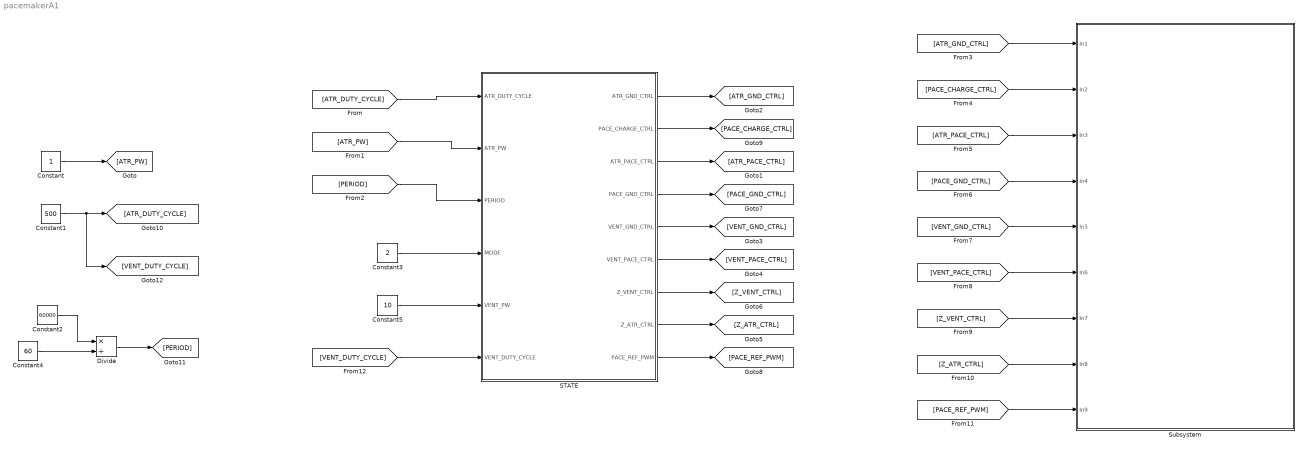
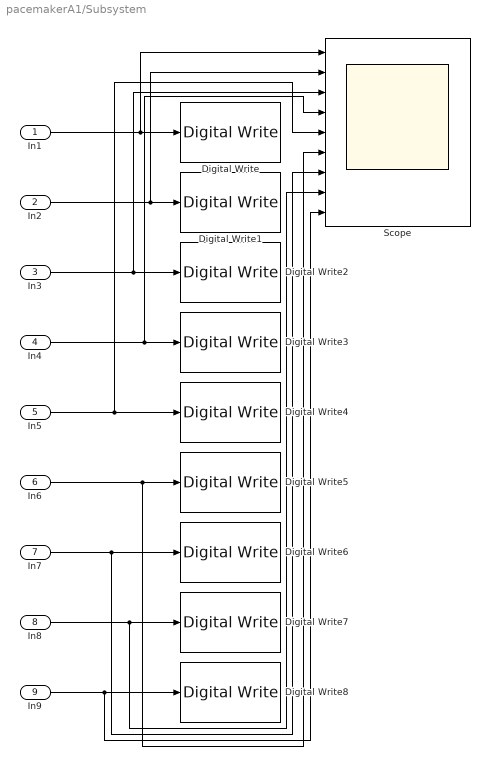
== stateflow chart pacemakerA1/STATE ==
  state AOO [group]
    state CharingC22
      %Capacitor charing state
      ATR_PACE_CTRL = LOW
      VENT_PACE_CTRL = LOW
      PACE_REF_PWM = ATR_DUTY_CYCLE
      PACE_CHARGE_CTRL = HIGH
      %Discharge capacitor
      PACE_GND_CTRL = HIGH
      VENT_PACE_CTRL = LOW
      Z_ATR_CTRL = LOW
      Z_VENT_CTRL = LOW
      ATR_PACE_CTRL = LOW
      ATR_GND_CTRL = LOW
      VENT_GND_CTRL = HIGH
    state AVPacing
      %step 2
      PACE_CHARGE_CTRL = LOW
      PACE_GND_CTRL = HIGH
      ATR_PACE_CTRL = HIGH
      ATR_GND_CTRL = LOW
      Z_ATR_CTRL = LOW
      Z_VENT_CTRL = LOW
      VENT_GND_CTRL = LOW
      VENT_PACE_CTRL = LOW
    CharingC22 -> AVPacing : after(PERIOD-ATR_PW, msec)
    AVPacing -> CharingC22 : after(ATR_PW, msec)
  state VOO [group]
    state CharingC23
      during:
      %Begin Charging C22 Capacitor
      ATR_PACE_CTRL = LOW
      VENT_PACE_CTRL = LOW
      PACE_REF_PWM = VENT_DUTY_CYCLE
      PACE_CHARGE_CTRL = HIGH
      %Begin Discharging C21 Blocking Capacitor
      PACE_GND_CTRL = HIGH
      VENT_PACE_CTRL = LOW
      Z_ATR_CTRL = LOW
      Z_VENT_CTRL = LOW
      ATR_PACE_CTRL = LOW
      ATR_GND_CTRL = LOW
      VENT_GND_CTRL = HIGH
    state Discharge
      during:
      %Discharge C22 into Ventricle (Vent Pacing)
      %Begin Charging Blocking Capacitor
      PACE_CHARGE_CTRL = LOW
      PACE_GND_CTRL = HIGH
      ATR_PACE_CTRL = LOW
      ATR_GND_CTRL = LOW
      Z_ATR_CTRL = LOW
      Z_VENT_CTRL = LOW
      VENT_GND_CTRL = LOW
      VENT_PACE_CTRL  = HIGH
    VOO.CharingC23 -> Discharge : after(PERIOD-VENT_PW, msec)
    Discharge -> VOO.CharingC23 : after(VENT_PW, msec)
  state TEST [group]
    state CharingC23
      %Capacitor charing state
      ATR_PACE_CTRL = LOW
      VENT_PACE_CTRL = LOW
      PACE_REF_PWM = ATR_DUTY_CYCLE
      PACE_CHARGE_CTRL = HIGH
      %Discharge capacitor
      PACE_GND_CTRL = HIGH
      VENT_PACE_CTRL = LOW
      Z_ATR_CTRL = LOW
      Z_VENT_CTRL = LOW
      ATR_PACE_CTRL = LOW
      ATR_GND_CTRL = LOW
      VENT_GND_CTRL = HIGH
    state AVPacing1
      %step 2
      PACE_CHARGE_CTRL = LOW
      PACE_GND_CTRL = HIGH
      ATR_PACE_CTRL = HIGH
      ATR_GND_CTRL = LOW
      Z_ATR_CTRL = LOW
      Z_VENT_CTRL = LOW
      VENT_GND_CTRL = LOW
      VENT_PACE_CTRL = LOW
    TEST.CharingC23 -> AVPacing1 : after(PERIOD-ATR_PW, msec)
    AVPacing1 -> TEST.CharingC23 : after(ATR_PW, msec)
  (junction 37) -> CharingC22 [order 1] : [MODE ==1]
  (junction 37) -> VOO.CharingC23 [order 2] : [MODE ==2]
  (default) -> (junction 37)
  (junction 37) -> TEST.CharingC23 [order 3]
  data: HIGH local =true; LOW local =false; ATR_GND_CTRL output; PACE_CHARGE_CTRL output; ATR_PACE_CTRL output; PACE_GND_CTRL output; VENT_GND_CTRL output; VENT_PACE_CTRL output; Z_VENT_CTRL output; Z_ATR_CTRL output; PACE_REF_PWM output; ATR_DUTY_CYCLE input; ATR_PW input; PERIOD input; MODE input; VENT_PW input; VENT_DUTY_CYCLE input

/*
 * Academic License - for use in teaching, academic research, and meeting
 * course requirements at degree granting institutions only.  Not for
 * government, commercial, or other organizational use.
 *
 * File: pacemakerA1.c
 *
 * Code generated for Simulink model 'pacemakerA1'.
 *
 * Model version                  : 1.19
 * Simulink Coder version         : 9.7 (R2022a) 13-Nov-2021
 * C/C++ source code generated on : Mon Oct 17 16:08:50 2022
 *
 * Target selection: ert.tlc
 * Embedded hardware selection: ARM Compatible->ARM Cortex
 * Code generation objectives: Unspecified
 * Validation result: Not run
 */

#include "pacemakerA1.h"
#include "rtwtypes.h"
#include <math.h>
#include "pacemakerA1_types.h"

/* Named constants for Chart: '<Root>/STATE' */
#define pacemakerA1_IN_AVPacing        ((uint8_T)1U)
#define pacemakerA1_IN_AVPacing1       ((uint8_T)3U)
#define pacemakerA1_IN_CharingC22      ((uint8_T)2U)
#define pacemakerA1_IN_CharingC23      ((uint8_T)4U)
#define pacemakerA1_IN_CharingC23_d    ((uint8_T)5U)
#define pacemakerA1_IN_Discharge       ((uint8_T)6U)

/* Block signals (default storage) */
B_pacemakerA1_T pacemakerA1_B;

/* Block states (default storage) */
DW_pacemakerA1_T pacemakerA1_DW;

/* Real-time model */
static RT_MODEL_pacemakerA1_T pacemakerA1_M_;
RT_MODEL_pacemakerA1_T *const pacemakerA1_M = &pacemakerA1_M_;

/* Forward declaration for local functions */
static void pacemak_enter_atomic_CharingC22(void);

/* Function for Chart: '<Root>/STATE' */
static void pacemak_enter_atomic_CharingC22(void)
{
  /* Constant: '<Root>/Constant1' */
  pacemakerA1_B.PACE_REF_PWM = pacemakerA1_P.Constant1_Value;
  pacemakerA1_B.PACE_CHARGE_CTRL = pacemakerA1_DW.HIGH;
  pacemakerA1_B.PACE_GND_CTRL = pacemakerA1_DW.HIGH;
  pacemakerA1_B.VENT_PACE_CTRL = pacemakerA1_DW.LOW;
  pacemakerA1_B.Z_ATR_CTRL = pacemakerA1_DW.LOW;
  pacemakerA1_B.Z_VENT_CTRL = pacemakerA1_DW.LOW;
  pacemakerA1_B.ATR_PACE_CTRL = pacemakerA1_DW.LOW;
  pacemakerA1_B.ATR_GND_CTRL = pacemakerA1_DW.LOW;
  pacemakerA1_B.VENT_GND_CTRL = pacemakerA1_DW.HIGH;
}

/* Model step function */
void pacemakerA1_step(void)
{
  /* Chart: '<Root>/STATE' incorporates:
   *  Constant: '<Root>/Constant'
   *  Constant: '<Root>/Constant1'
   *  Constant: '<Root>/Constant2'
   *  Constant: '<Root>/Constant3'
   *  Constant: '<Root>/Constant4'
   *  Constant: '<Root>/Constant5'
   *  Product: '<Root>/Divide'
   */
  if (pacemakerA1_DW.temporalCounter_i1 < MAX_uint32_T) {
    pacemakerA1_DW.temporalCounter_i1++;
  }

  if (pacemakerA1_DW.is_active_c3_pacemakerA1 == 0U) {
    pacemakerA1_DW.is_active_c3_pacemakerA1 = 1U;
    if (pacemakerA1_P.Constant3_Value == 1.0) {
      pacemakerA1_DW.is_c3_pacemakerA1 = pacemakerA1_IN_CharingC22;
      pacemakerA1_DW.temporalCounter_i1 = 0U;
      pacemak_enter_atomic_CharingC22();
    } else if (pacemakerA1_P.Constant3_Value == 2.0) {
      pacemakerA1_DW.is_c3_pacemakerA1 = pacemakerA1_IN_CharingC23_d;
      pacemakerA1_DW.temporalCounter_i1 = 0U;
    } else {
      pacemakerA1_DW.is_c3_pacemakerA1 = pacemakerA1_IN_CharingC23;
      pacemakerA1_DW.temporalCounter_i1 = 0U;
      pacemak_enter_atomic_CharingC22();
    }
  } else {
    switch (pacemakerA1_DW.is_c3_pacemakerA1) {
     case pacemakerA1_IN_AVPacing:
      if (pacemakerA1_DW.temporalCounter_i1 >= (uint32_T)ceil
          (pacemakerA1_P.Constant_Value)) {
        pacemakerA1_DW.is_c3_pacemakerA1 = pacemakerA1_IN_CharingC22;
        pacemakerA1_DW.temporalCounter_i1 = 0U;
        pacemak_enter_atomic_CharingC22();
      } else {
        pacemakerA1_B.PACE_CHARGE_CTRL = pacemakerA1_DW.LOW;
        pacemakerA1_B.PACE_GND_CTRL = pacemakerA1_DW.HIGH;
        pacemakerA1_B.ATR_PACE_CTRL = pacemakerA1_DW.HIGH;
        pacemakerA1_B.ATR_GND_CTRL = pacemakerA1_DW.LOW;
        pacemakerA1_B.Z_ATR_CTRL = pacemakerA1_DW.LOW;
        pacemakerA1_B.Z_VENT_CTRL = pacemakerA1_DW.LOW;
        pacemakerA1_B.VENT_GND_CTRL = pacemakerA1_DW.LOW;
        pacemakerA1_B.VENT_PACE_CTRL = pacemakerA1_DW.LOW;
      }
      break;

     case pacemakerA1_IN_CharingC22:
      if (pacemakerA1_DW.temporalCounter_i1 >= (uint32_T)ceil
          (pacemakerA1_P.Constant2_Value / pacemakerA1_P.Constant4_Value -
           pacemakerA1_P.Constant_Value)) {
        pacemakerA1_DW.is_c3_pacemakerA1 = pacemakerA1_IN_AVPacing;
        pacemakerA1_DW.temporalCounter_i1 = 0U;
        pacemakerA1_B.PACE_CHARGE_CTRL = pacemakerA1_DW.LOW;
        pacemakerA1_B.PACE_GND_CTRL = pacemakerA1_DW.HIGH;
        pacemakerA1_B.ATR_PACE_CTRL = pacemakerA1_DW.HIGH;
        pacemakerA1_B.ATR_GND_CTRL = pacemakerA1_DW.LOW;
        pacemakerA1_B.Z_ATR_CTRL = pacemakerA1_DW.LOW;
        pacemakerA1_B.Z_VENT_CTRL = pacemakerA1_DW.LOW;
        pacemakerA1_B.VENT_GND_CTRL = pacemakerA1_DW.LOW;
        pacemakerA1_B.VENT_PACE_CTRL = pacemakerA1_DW.LOW;
      } else {
        pacemakerA1_B.PACE_REF_PWM = pacemakerA1_P.Constant1_Value;
        pacemakerA1_B.PACE_CHARGE_CTRL = pacemakerA1_DW.HIGH;
        pacemakerA1_B.PACE_GND_CTRL = pacemakerA1_DW.HIGH;
        pacemakerA1_B.VENT_PACE_CTRL = pacemakerA1_DW.LOW;
        pacemakerA1_B.Z_ATR_CTRL = pacemakerA1_DW.LOW;
        pacemakerA1_B.Z_VENT_CTRL = pacemakerA1_DW.LOW;
        pacemakerA1_B.ATR_PACE_CTRL = pacemakerA1_DW.LOW;
        pacemakerA1_B.ATR_GND_CTRL = pacemakerA1_DW.LOW;
        pacemakerA1_B.VENT_GND_CTRL = pacemakerA1_DW.HIGH;
      }
      break;

     case pacemakerA1_IN_AVPacing1:
      if (pacemakerA1_DW.temporalCounter_i1 >= (uint32_T)ceil
          (pacemakerA1_P.Constant_Value)) {
        pacemakerA1_DW.is_c3_pacemakerA1 = pacemakerA1_IN_CharingC23;
        pacemakerA1_DW.temporalCounter_i1 = 0U;
        pacemak_enter_atomic_CharingC22();
      } else {
        pacemakerA1_B.PACE_CHARGE_CTRL = pacemakerA1_DW.LOW;
        pacemakerA1_B.PACE_GND_CTRL = pacemakerA1_DW.HIGH;
        pacemakerA1_B.ATR_PACE_CTRL = pacemakerA1_DW.HIGH;
        pacemakerA1_B.ATR_GND_CTRL = pacemakerA1_DW.LOW;
        pacemakerA1_B.Z_ATR_CTRL = pacemakerA1_DW.LOW;
        pacemakerA1_B.Z_VENT_CTRL = pacemakerA1_DW.LOW;
        pacemakerA1_B.VENT_GND_CTRL = pacemakerA1_DW.LOW;
        pacemakerA1_B.VENT_PACE_CTRL = pacemakerA1_DW.LOW;
      }
      break;

     case pacemakerA1_IN_CharingC23:
      if (pacemakerA1_DW.temporalCounter_i1 >= (uint32_T)ceil
          (pacemakerA1_P.Constant2_Value / pacemakerA1_P.Constant4_Value -
           pacemakerA1_P.Constant_Value)) {
        pacemakerA1_DW.is_c3_pacemakerA1 = pacemakerA1_IN_AVPacing1;
        pacemakerA1_DW.temporalCounter_i1 = 0U;
        pacemakerA1_B.PACE_CHARGE_CTRL = pacemakerA1_DW.LOW;
        pacemakerA1_B.PACE_GND_CTRL = pacemakerA1_DW.HIGH;
        pacemakerA1_B.ATR_PACE_CTRL = pacemakerA1_DW.HIGH;
        pacemakerA1_B.ATR_GND_CTRL = pacemakerA1_DW.LOW;
        pacemakerA1_B.Z_ATR_CTRL = pacemakerA1_DW.LOW;
        pacemakerA1_B.Z_VENT_CTRL = pacemakerA1_DW.LOW;
        pacemakerA1_B.VENT_GND_CTRL = pacemakerA1_DW.LOW;
        pacemakerA1_B.VENT_PACE_CTRL = pacemakerA1_DW.LOW;
      } else {
        pacemakerA1_B.PACE_REF_PWM = pacemakerA1_P.Constant1_Value;
        pacemakerA1_B.PACE_CHARGE_CTRL = pacemakerA1_DW.HIGH;
        pacemakerA1_B.PACE_GND_CTRL = pacemakerA1_DW.HIGH;
        pacemakerA1_B.VENT_PACE_CTRL = pacemakerA1_DW.LOW;
        pacemakerA1_B.Z_ATR_CTRL = pacemakerA1_DW.LOW;
        pacemakerA1_B.Z_VENT_CTRL = pacemakerA1_DW.LOW;
        pacemakerA1_B.ATR_PACE_CTRL = pacemakerA1_DW.LOW;
        pacemakerA1_B.ATR_GND_CTRL = pacemakerA1_DW.LOW;
        pacemakerA1_B.VENT_GND_CTRL = pacemakerA1_DW.HIGH;
      }
      break;

     case pacemakerA1_IN_CharingC23_d:
      if (pacemakerA1_DW.temporalCounter_i1 >= (uint32_T)ceil
          (pacemakerA1_P.Constant2_Value / pacemakerA1_P.Constant4_Value -
           pacemakerA1_P.Constant5_Value)) {
        pacemakerA1_DW.is_c3_pacemakerA1 = pacemakerA1_IN_Discharge;
        pacemakerA1_DW.temporalCounter_i1 = 0U;
      } else {
        pacemakerA1_B.PACE_REF_PWM = pacemakerA1_P.Constant1_Value;
        pacemakerA1_B.PACE_CHARGE_CTRL = pacemakerA1_DW.HIGH;
        pacemakerA1_B.PACE_GND_CTRL = pacemakerA1_DW.HIGH;
        pacemakerA1_B.VENT_PACE_CTRL = pacemakerA1_DW.LOW;
        pacemakerA1_B.Z_ATR_CTRL = pacemakerA1_DW.LOW;
        pacemakerA1_B.Z_VENT_CTRL = pacemakerA1_DW.LOW;
        pacemakerA1_B.ATR_PACE_CTRL = pacemakerA1_DW.LOW;
        pacemakerA1_B.ATR_GND_CTRL = pacemakerA1_DW.LOW;
        pacemakerA1_B.VENT_GND_CTRL = pacemakerA1_DW.HIGH;
      }
      break;

     default:
      /* case IN_Discharge: */
      if (pacemakerA1_DW.temporalCounter_i1 >= (uint32_T)ceil
          (pacemakerA1_P.Constant5_Value)) {
        pacemakerA1_DW.is_c3_pacemakerA1 = pacemakerA1_IN_CharingC23_d;
        pacemakerA1_DW.temporalCounter_i1 = 0U;
      } else {
        pacemakerA1_B.PACE_CHARGE_CTRL = pacemakerA1_DW.LOW;
        pacemakerA1_B.PACE_GND_CTRL = pacemakerA1_DW.HIGH;
        pacemakerA1_B.ATR_PACE_CTRL = pacemakerA1_DW.LOW;
        pacemakerA1_B.ATR_GND_CTRL = pacemakerA1_DW.LOW;
        pacemakerA1_B.Z_ATR_CTRL = pacemakerA1_DW.LOW;
        pacemakerA1_B.Z_VENT_CTRL = pacemakerA1_DW.LOW;
        pacemakerA1_B.VENT_GND_CTRL = pacemakerA1_DW.LOW;
        pacemakerA1_B.VENT_PACE_CTRL = pacemakerA1_DW.HIGH;
      }
      break;
    }
  }

  /* End of Chart: '<Root>/STATE' */

  /* MATLABSystem: '<S2>/Digital Write' */
  MW_digitalIO_write(pacemakerA1_DW.obj_h.MW_DIGITALIO_HANDLE,
                     pacemakerA1_B.ATR_GND_CTRL);

  /* MATLABSystem: '<S2>/Digital Write1' */
  MW_digitalIO_write(pacemakerA1_DW.obj_j.MW_DIGITALIO_HANDLE,
                     pacemakerA1_B.PACE_CHARGE_CTRL);

  /* MATLABSystem: '<S2>/Digital Write2' */
  MW_digitalIO_write(pacemakerA1_DW.obj_l.MW_DIGITALIO_HANDLE,
                     pacemakerA1_B.ATR_PACE_CTRL);

  /* MATLABSystem: '<S2>/Digital Write3' */
  MW_digitalIO_write(pacemakerA1_DW.obj_e.MW_DIGITALIO_HANDLE,
                     pacemakerA1_B.PACE_GND_CTRL);

  /* MATLABSystem: '<S2>/Digital Write4' */
  MW_digitalIO_write(pacemakerA1_DW.obj_f.MW_DIGITALIO_HANDLE,
                     pacemakerA1_B.VENT_GND_CTRL);

  /* MATLABSystem: '<S2>/Digital Write5' */
  MW_digitalIO_write(pacemakerA1_DW.obj_m.MW_DIGITALIO_HANDLE,
                     pacemakerA1_B.VENT_PACE_CTRL);

  /* MATLABSystem: '<S2>/Digital Write6' */
  MW_digitalIO_write(pacemakerA1_DW.obj_p.MW_DIGITALIO_HANDLE,
                     pacemakerA1_B.Z_VENT_CTRL);

  /* MATLABSystem: '<S2>/Digital Write7' */
  MW_digitalIO_write(pacemakerA1_DW.obj_k.MW_DIGITALIO_HANDLE,
                     pacemakerA1_B.Z_ATR_CTRL);

  /* MATLABSystem: '<S2>/Digital Write8' */
  MW_digitalIO_write(pacemakerA1_DW.obj.MW_DIGITALIO_HANDLE,
                     pacemakerA1_B.PACE_REF_PWM != 0.0);
}
